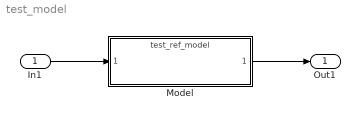
/*
 * File: test_model.c
 *
 * Code generated for Simulink model 'test_model'.
 *
 * Model version                  : 1.12
 * Simulink Coder version         : 9.3 (R2020a) 18-Nov-2019
 * C/C++ source code generated on : Tue Sep 22 18:01:06 2020
 *
 * Target selection: ert.tlc
 * Embedded hardware selection: Intel->x86-64 (Windows64)
 * Code generation objectives: Unspecified
 * Validation result: Not run
 */

#include "test_model.h"
#include "test_model_private.h"

/* Block states (default storage) */
DW_test_model_T test_model_DW;

/* External inputs (root inport signals with default storage) */
ExtU_test_model_T test_model_U;

/* External outputs (root outports fed by signals with default storage) */
ExtY_test_model_T test_model_Y;

/* Real-time model */
RT_MODEL_test_model_T test_model_M_;
RT_MODEL_test_model_T *const test_model_M = &test_model_M_;

/* Model step function */
void test_model_step(void)
{
  /* ModelReference: '<Root>/Model' incorporates:
   *  Inport: '<Root>/In1'
   *  Outport: '<Root>/Out1'
   */
  test_ref_model(&test_model_U.In1, &test_model_Y.Out1, 5, 2);
}
